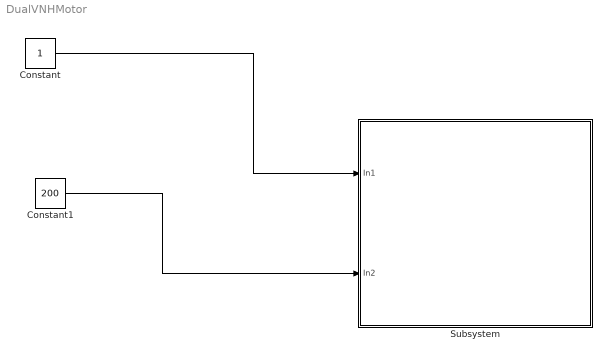
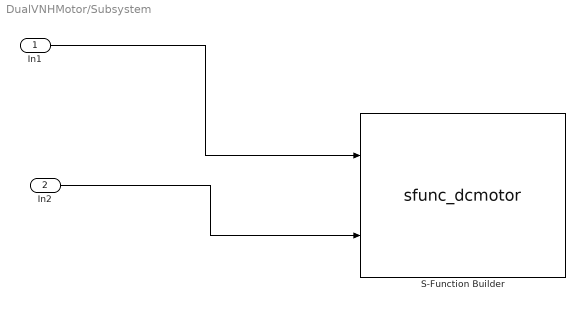
/*
 * Academic License - for use in teaching, academic research, and meeting
 * course requirements at degree granting institutions only.  Not for
 * government, commercial, or other organizational use.
 *
 * File: DualVNHMotor.c
 *
 * Code generated for Simulink model 'DualVNHMotor'.
 *
 * Model version                  : 1.16
 * Simulink Coder version         : 9.0 (R2018b) 24-May-2018
 * C/C++ source code generated on : Wed Apr 24 12:10:27 2019
 *
 * Target selection: ert.tlc
 * Embedded hardware selection: Atmel->AVR
 * Code generation objectives: Unspecified
 * Validation result: Not run
 */

#include "DualVNHMotor.h"
#include "DualVNHMotor_private.h"
#include "DualVNHMotor_dt.h"

/* Block states (default storage) */
DW_DualVNHMotor_T DualVNHMotor_DW;

/* Real-time model */
RT_MODEL_DualVNHMotor_T DualVNHMotor_M_;
RT_MODEL_DualVNHMotor_T *const DualVNHMotor_M = &DualVNHMotor_M_;

/* Model step function */
void DualVNHMotor_step(void)
{
  /* S-Function (sfunc_dcmotor): '<S1>/S-Function Builder' incorporates:
   *  Constant: '<Root>/Constant'
   *  Constant: '<Root>/Constant1'
   */
  sfunc_dcmotor_Outputs_wrapper(&DualVNHMotor_P.Constant_Value,
    &DualVNHMotor_P.Constant1_Value, &DualVNHMotor_DW.SFunctionBuilder_DSTATE);

  /* Update for S-Function (sfunc_dcmotor): '<S1>/S-Function Builder' incorporates:
   *  Constant: '<Root>/Constant'
   *  Constant: '<Root>/Constant1'
   */

  /* S-Function "sfunc_dcmotor_wrapper" Block: <S1>/S-Function Builder */
  sfunc_dcmotor_Update_wrapper(&DualVNHMotor_P.Constant_Value,
    &DualVNHMotor_P.Constant1_Value, &DualVNHMotor_DW.SFunctionBuilder_DSTATE);

  /* External mode */
  rtExtModeUploadCheckTrigger(1);

  {                                    /* Sample time: [0.2s, 0.0s] */
    rtExtModeUpload(0, (real_T)DualVNHMotor_M->Timing.taskTime0);
  }

  /* signal main to stop simulation */
  {                                    /* Sample time: [0.2s, 0.0s] */
    if ((rtmGetTFinal(DualVNHMotor_M)!=-1) &&
        !((rtmGetTFinal(DualVNHMotor_M)-DualVNHMotor_M->Timing.taskTime0) >
          DualVNHMotor_M->Timing.taskTime0 * (DBL_EPSILON))) {
      rtmSetErrorStatus(DualVNHMotor_M, "Simulation finished");
    }

    if (rtmGetStopRequested(DualVNHMotor_M)) {
      rtmSetErrorStatus(DualVNHMotor_M, "Simulation finished");
    }
  }

  /* Update absolute time for base rate */
  /* The "clockTick0" counts the number of times the code of this task has
   * been executed. The absolute time is the multiplication of "clockTick0"
   * and "Timing.stepSize0". Size of "clockTick0" ensures timer will not
   * overflow during the application lifespan selected.
   */
  DualVNHMotor_M->Timing.taskTime0 =
    (++DualVNHMotor_M->Timing.clockTick0) * DualVNHMotor_M->Timing.stepSize0;
}
